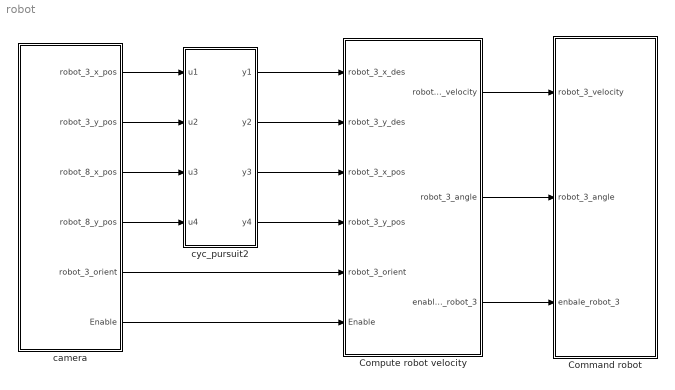
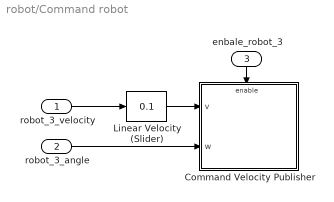
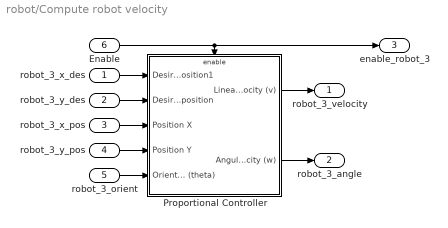
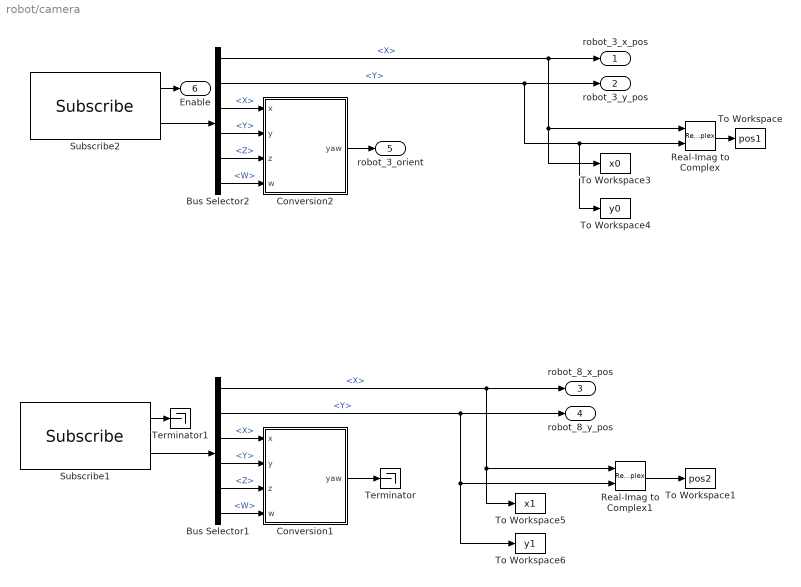
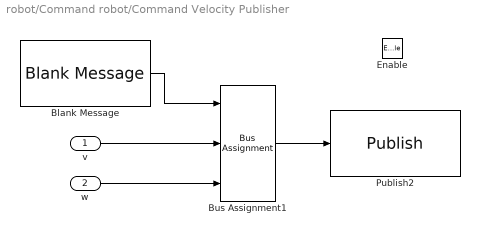
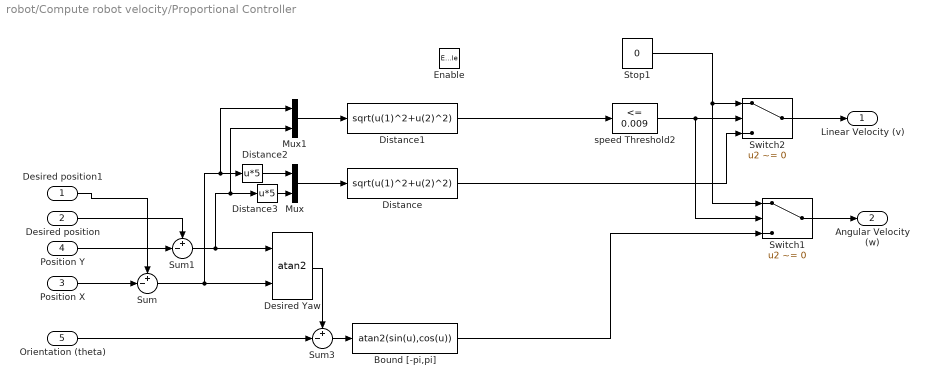
== matlab function robot/cyc_pursuit2 ==
function [y1, y2, y3, y4] = fcn(u1, u2, u3, u4)
%#codegen

y1 = ((1-0.2)*u1+(u3*0.2)-(1.2135*0.2));
y2 = ((1-0.2)*u2+(0.2*u4)-(0.8817*0.2));
y3=u1;
y4=u2;

== matlab function robot/camera/Conversion1 ==
function yaw  = quat2eul(x,y,z,w)
%#codegen

% Convert the quaternion to a yaw angle (zyx euler angle)
eul = quat2eul([w,x,y,z]);
yaw = eul(1);

end

== matlab function robot/camera/Conversion2 ==
function yaw  = quat2eul(x,y,z,w)
%#codegen

% Convert the quaternion to a yaw angle (zyx euler angle)
eul = quat2eul([w,x,y,z]);
yaw = eul(1);

end

//
// Academic License - for use in teaching, academic research, and meeting
// course requirements at degree granting institutions only.  Not for
// government, commercial, or other organizational use.
//
// File: robot.cpp
//
// Code generated for Simulink model 'robot'.
//
// Model version                  : 1.15
// Simulink Coder version         : 8.11 (R2016b) 25-Aug-2016
// C/C++ source code generated on : Fri Dec 30 17:27:04 2016
//
// Target selection: ert.tlc
// Embedded hardware selection: Generic->Unspecified (assume 32-bit Generic)
// Code generation objectives: Unspecified
// Validation result: Not run
//
#include "robot.h"
#include "robot_private.h"
#define robot_MessageQueueLen          (105)
#define robot_MessageQueueLen_h        (1)

real_T rt_atan2d_snf(real_T u0, real_T u1)
{
  real_T y;
  int32_T u0_0;
  int32_T u1_0;
  if (rtIsNaN(u0) || rtIsNaN(u1)) {
    y = (rtNaN);
  } else if (rtIsInf(u0) && rtIsInf(u1)) {
    if (u0 > 0.0) {
      u0_0 = 1;
    } else {
      u0_0 = -1;
    }

    if (u1 > 0.0) {
      u1_0 = 1;
    } else {
      u1_0 = -1;
    }

    y = atan2((real_T)u0_0, (real_T)u1_0);
  } else if (u1 == 0.0) {
    if (u0 > 0.0) {
      y = RT_PI / 2.0;
    } else if (u0 < 0.0) {
      y = -(RT_PI / 2.0);
    } else {
      y = 0.0;
    }
  } else {
    y = atan2(u0, u1);
  }

  return y;
}

//
// Output and update for atomic system:
//    '<S3>/Conversion1'
//    '<S3>/Conversion2'
//
void robot_Conversion1(real_T rtu_x, real_T rtu_y, real_T rtu_z, real_T rtu_w,
  B_Conversion1_robot_T *localB)
{
  real_T b_y;
  real_T q_idx_0;
  real_T q_idx_1;
  real_T q_idx_2;

  //  Convert the quaternion to a yaw angle (zyx euler angle)
  // MATLAB Function 'camera/Conversion1': '<S11>:1'
  // '<S11>:1:5' eul = quat2eul([w,x,y,z]);
  b_y = 1.0 / sqrt(((rtu_w * rtu_w + rtu_x * rtu_x) + rtu_y * rtu_y) + rtu_z *
                   rtu_z);
  q_idx_0 = rtu_w * b_y;
  q_idx_1 = rtu_x * b_y;
  q_idx_2 = rtu_y * b_y;
  b_y *= rtu_z;

  // '<S11>:1:6' yaw = eul(1);
  localB->yaw = rt_atan2d_snf((q_idx_1 * q_idx_2 + q_idx_0 * b_y) * 2.0,
    ((q_idx_0 * q_idx_0 + q_idx_1 * q_idx_1) - q_idx_2 * q_idx_2) - b_y * b_y);
}

real_T rt_powd_snf(real_T u0, real_T u1)
{
  real_T y;
  real_T tmp;
  real_T tmp_0;
  if (rtIsNaN(u0) || rtIsNaN(u1)) {
    y = (rtNaN);
  } else {
    tmp = fabs(u0);
    tmp_0 = fabs(u1);
    if (rtIsInf(u1)) {
      if (tmp == 1.0) {
        y = (rtNaN);
      } else if (tmp > 1.0) {
        if (u1 > 0.0) {
          y = (rtInf);
        } else {
          y = 0.0;
        }
      } else if (u1 > 0.0) {
        y = 0.0;
      } else {
        y = (rtInf);
      }
    } else if (tmp_0 == 0.0) {
      y = 1.0;
    } else if (tmp_0 == 1.0) {
      if (u1 > 0.0) {
        y = u0;
      } else {
        y = 1.0 / u0;
      }
    } else if (u1 == 2.0) {
      y = u0 * u0;
    } else if ((u1 == 0.5) && (u0 >= 0.0)) {
      y = sqrt(u0);
    } else if ((u0 < 0.0) && (u1 > floor(u1))) {
      y = (rtNaN);
    } else {
      y = pow(u0, u1);
    }
  }

  return y;
}

// Model step function
void robot_0ModelClass::step()
{
  boolean_T varargout_1;
  boolean_T varargout_1_0;

  // Outputs for Atomic SubSystem: '<S3>/Subscribe2'
  // Start for MATLABSystem: '<S14>/SourceBlock' incorporates:
  //   Inport: '<S16>/In1'
  //   MATLABSystem: '<S14>/SourceBlock'

  varargout_1 = Sub_robot_11.getLatestMessage(&robot_B.varargout_2);

  // Outputs for Enabled SubSystem: '<S14>/Enabled Subsystem' incorporates:
  //   EnablePort: '<S16>/Enable'

  if (varargout_1) {
    robot_B.In1 = robot_B.varargout_2;
  }

  // End of Outputs for SubSystem: '<S14>/Enabled Subsystem'
  // End of Outputs for SubSystem: '<S3>/Subscribe2'

  // Outputs for Atomic SubSystem: '<S3>/Subscribe1'
  // Start for MATLABSystem: '<S13>/SourceBlock' incorporates:
  //   Inport: '<S15>/In1'
  //   MATLABSystem: '<S13>/SourceBlock'

  varargout_1_0 = Sub_robot_10.getLatestMessage(&robot_B.varargout_2);

  // Outputs for Enabled SubSystem: '<S13>/Enabled Subsystem' incorporates:
  //   EnablePort: '<S15>/Enable'

  if (varargout_1_0) {
    robot_B.In1_d = robot_B.varargout_2;
  }

  // End of Start for MATLABSystem: '<S13>/SourceBlock'
  // End of Outputs for SubSystem: '<S13>/Enabled Subsystem'
  // End of Outputs for SubSystem: '<S3>/Subscribe1'

  // MATLAB Function: '<S3>/Conversion2'
  // MATLAB Function 'cyc_pursuit2': '<S4>:1'
  // '<S4>:1:4' y1 = ((1-0.2)*u1+(u3*0.2)-(1.2135*0.2));
  // '<S4>:1:5' y2 = ((1-0.2)*u2+(0.2*u4)-(0.8817*0.2));
  // '<S4>:1:6' y3=u1;
  // '<S4>:1:7' y4=u2;
  robot_Conversion1(robot_B.In1.Pose.Orientation.X,
                    robot_B.In1.Pose.Orientation.Y,
                    robot_B.In1.Pose.Orientation.Z,
                    robot_B.In1.Pose.Orientation.W, &robot_B.sf_Conversion2);

  // Outputs for Enabled SubSystem: '<S1>/Command Velocity Publisher' incorporates:
  //   EnablePort: '<S5>/Enable'

  // Outputs for Enabled SubSystem: '<S2>/Proportional Controller' incorporates:
  //   EnablePort: '<S9>/Enable'

  // Outputs for Atomic SubSystem: '<S3>/Subscribe2'
  // Start for MATLABSystem: '<S14>/SourceBlock' incorporates:
  //   MATLABSystem: '<S14>/SourceBlock'

  if (varargout_1) {
    // Sum: '<S9>/Sum1' incorporates:
    //   MATLAB Function: '<Root>/cyc_pursuit2'
    //   SignalConversion: '<S3>/SigConversion_InsertedFor_Bus Selector1_at_outport_1'
    //   SignalConversion: '<S3>/SigConversion_InsertedFor_Bus Selector2_at_outport_1'

    robot_B.Sum1 = ((0.8 * robot_B.In1.Pose.Position.Y + 0.2 *
                     robot_B.In1_d.Pose.Position.Y) - 0.17634000000000002) -
      robot_B.In1.Pose.Position.Y;

    // Sum: '<S9>/Sum' incorporates:
    //   MATLAB Function: '<Root>/cyc_pursuit2'
    //   SignalConversion: '<S3>/SigConversion_InsertedFor_Bus Selector1_at_outport_0'
    //   SignalConversion: '<S3>/SigConversion_InsertedFor_Bus Selector2_at_outport_0'

    robot_B.Sum = ((0.8 * robot_B.In1.Pose.Position.X +
                    robot_B.In1_d.Pose.Position.X * 0.2) - 0.24270000000000003)
      - robot_B.In1.Pose.Position.X;

    // Fcn: '<S9>/Distance1'
    robot_B.Sum3 = rt_powd_snf(robot_B.Sum, 2.0) + rt_powd_snf(robot_B.Sum1, 2.0);
    if (robot_B.Sum3 < 0.0) {
      robot_B.Sum3 = -sqrt(-robot_B.Sum3);
    } else {
      robot_B.Sum3 = sqrt(robot_B.Sum3);
    }

    // End of Fcn: '<S9>/Distance1'

    // Switch: '<S9>/Switch1' incorporates:
    //   Constant: '<S10>/Constant'
    //   Constant: '<S9>/Stop1'
    //   Fcn: '<S9>/Bound [-pi,pi]'
    //   RelationalOperator: '<S10>/Compare'
    //   Switch: '<S9>/Switch2'

    if (robot_B.Sum3 <= robot_P.speedThreshold2_const) {
      robot_B.Switch1 = robot_P.Stop1_Value;
      robot_B.Sum1 = robot_P.Stop1_Value;
    } else {
      // Sum: '<S9>/Sum3' incorporates:
      //   Trigonometry: '<S9>/Desired Yaw'

      robot_B.Sum3 = rt_atan2d_snf(robot_B.Sum1, robot_B.Sum) -
        robot_B.sf_Conversion2.yaw;
      robot_B.Switch1 = rt_atan2d_snf(sin(robot_B.Sum3), cos(robot_B.Sum3));

      // Fcn: '<S9>/Distance3' incorporates:
      //   Fcn: '<S9>/Bound [-pi,pi]'

      robot_B.Sum1 *= 5.0;

      // Fcn: '<S9>/Distance2'
      robot_B.Sum *= 5.0;

      // Fcn: '<S9>/Distance'
      robot_B.Sum3 = rt_powd_snf(robot_B.Sum, 2.0) + rt_powd_snf(robot_B.Sum1,
        2.0);
      if (robot_B.Sum3 < 0.0) {
        robot_B.Sum1 = -sqrt(-robot_B.Sum3);
      } else {
        robot_B.Sum1 = sqrt(robot_B.Sum3);
      }

      // End of Fcn: '<S9>/Distance'
    }

    // End of Switch: '<S9>/Switch1'

    // BusAssignment: '<S5>/Bus Assignment1' incorporates:
    //   Constant: '<S7>/Constant'
    //   Gain: '<S6>/Slider Gain'

    robot_B.BusAssignment1 = robot_P.Constant_Value_p;
    robot_B.BusAssignment1.Linear.X = robot_P.LinearVelocitySlider_gain *
      robot_B.Sum1;
    robot_B.BusAssignment1.Angular.Z = robot_B.Switch1;

    // Outputs for Atomic SubSystem: '<S5>/Publish2'
    // Start for MATLABSystem: '<S8>/SinkBlock' incorporates:
    //   MATLABSystem: '<S8>/SinkBlock'

    Pub_robot_75.publish(&robot_B.BusAssignment1);

    // End of Outputs for SubSystem: '<S5>/Publish2'
  }

  // End of Outputs for SubSystem: '<S3>/Subscribe2'
  // End of Outputs for SubSystem: '<S2>/Proportional Controller'
  // End of Outputs for SubSystem: '<S1>/Command Velocity Publisher'

  // MATLAB Function: '<S3>/Conversion1'
  robot_Conversion1(robot_B.In1_d.Pose.Orientation.X,
                    robot_B.In1_d.Pose.Orientation.Y,
                    robot_B.In1_d.Pose.Orientation.Z,
                    robot_B.In1_d.Pose.Orientation.W, &robot_B.sf_Conversion1);
}
